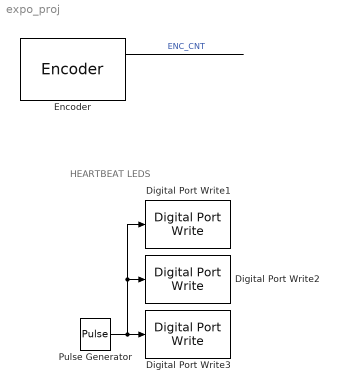
/*
 * Academic License - for use in teaching, academic research, and meeting
 * course requirements at degree granting institutions only.  Not for
 * government, commercial, or other organizational use.
 *
 * File: expo_proj.c
 *
 * Code generated for Simulink model 'expo_proj'.
 *
 * Model version                  : 1.9
 * Simulink Coder version         : 23.2 (R2023b) 01-Aug-2023
 * C/C++ source code generated on : Tue May 21 12:39:51 2024
 *
 * Target selection: ert.tlc
 * Embedded hardware selection: ARM Compatible->ARM Cortex
 * Code generation objectives: Unspecified
 * Validation result: Not run
 */

#include "expo_proj.h"
#include "expo_proj_types.h"
#include "rtwtypes.h"
#include "stm_timer_ll.h"
#include "expo_proj_private.h"

/* Block signals (default storage) */
B_expo_proj_T expo_proj_B;

/* Block states (default storage) */
DW_expo_proj_T expo_proj_DW;

/* Real-time model */
static RT_MODEL_expo_proj_T expo_proj_M_;
RT_MODEL_expo_proj_T *const expo_proj_M = &expo_proj_M_;

/* Forward declaration for local functions */
static void expo_proj_SystemCore_setup(stm32cube_blocks_EncoderBlock_T *obj);
static void expo_proj_SystemCore_setup(stm32cube_blocks_EncoderBlock_T *obj)
{
  uint8_T ChannelInfo;
  TIM_Type_T b;
  boolean_T isSlaveModeTriggerEnabled;

  /* Start for MATLABSystem: '<Root>/Encoder' */
  obj->isInitialized = 1;
  b.PeripheralPtr = TIM1;
  b.isCenterAlignedMode = false;

  /* Start for MATLABSystem: '<Root>/Encoder' */
  b.repetitionCounter = 0U;
  obj->TimerHandle = Timer_Handle_Init(&b);
  enableTimerInterrupts(obj->TimerHandle, 0);
  ChannelInfo = ENABLE_CH;

  /* Start for MATLABSystem: '<Root>/Encoder' */
  enableTimerChannel1(obj->TimerHandle, ChannelInfo);
  enableTimerChannel2(obj->TimerHandle, ChannelInfo);
  isSlaveModeTriggerEnabled = isSlaveTriggerModeEnabled(obj->TimerHandle);
  if (!isSlaveModeTriggerEnabled) {
    /* Start for MATLABSystem: '<Root>/Encoder' */
    enableCounter(obj->TimerHandle, false);
  }

  obj->isSetupComplete = true;
}

/* Model step function */
void expo_proj_step(void)
{
  GPIO_TypeDef * portNameLoc;
  real_T rtb_PulseGenerator;
  int32_T c;

  /* DiscretePulseGenerator: '<Root>/Pulse Generator' */
  rtb_PulseGenerator = (expo_proj_DW.clockTickCounter <
                        expo_proj_P.PulseGenerator_Duty) &&
    (expo_proj_DW.clockTickCounter >= 0) ? expo_proj_P.PulseGenerator_Amp : 0.0;
  if (expo_proj_DW.clockTickCounter >= expo_proj_P.PulseGenerator_Period - 1.0)
  {
    expo_proj_DW.clockTickCounter = 0;
  } else {
    expo_proj_DW.clockTickCounter++;
  }

  /* End of DiscretePulseGenerator: '<Root>/Pulse Generator' */

  /* MATLABSystem: '<S5>/Digital Port Write' */
  portNameLoc = GPIOB;
  c = (rtb_PulseGenerator != 0.0);
  LL_GPIO_SetOutputPin(portNameLoc, (uint32_T)c);
  LL_GPIO_ResetOutputPin(portNameLoc, ~(uint32_T)c & 1U);

  /* MATLABSystem: '<S7>/Digital Port Write' */
  portNameLoc = GPIOB;
  if (rtb_PulseGenerator != 0.0) {
    c = 16384;
  } else {
    c = 0;
  }

  LL_GPIO_SetOutputPin(portNameLoc, (uint32_T)c);
  LL_GPIO_ResetOutputPin(portNameLoc, ~(uint32_T)c & 16384U);

  /* End of MATLABSystem: '<S7>/Digital Port Write' */

  /* MATLABSystem: '<S9>/Digital Port Write' */
  portNameLoc = GPIOB;
  if (rtb_PulseGenerator != 0.0) {
    c = 128;
  } else {
    c = 0;
  }

  LL_GPIO_SetOutputPin(portNameLoc, (uint32_T)c);
  LL_GPIO_ResetOutputPin(portNameLoc, ~(uint32_T)c & 128U);

  /* End of MATLABSystem: '<S9>/Digital Port Write' */

  /* MATLABSystem: '<Root>/Encoder' */
  expo_proj_B.ENC_CNT = getTimerCounterValue(expo_proj_DW.obj.TimerHandle);

  {                                    /* Sample time: [0.5s, 0.0s] */
  }

  /* Update absolute time for base rate */
  /* The "clockTick0" counts the number of times the code of this task has
   * been executed. The absolute time is the multiplication of "clockTick0"
   * and "Timing.stepSize0". Size of "clockTick0" ensures timer will not
   * overflow during the application lifespan selected.
   */
  expo_proj_M->Timing.taskTime0 =
    ((time_T)(++expo_proj_M->Timing.clockTick0)) * expo_proj_M->Timing.stepSize0;
}
